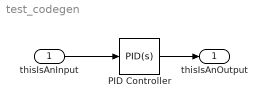
/*
 * Academic License - for use in teaching, academic research, and meeting
 * course requirements at degree granting institutions only.  Not for
 * government, commercial, or other organizational use.
 *
 * File: test_codegen.c
 *
 * Code generated for Simulink model 'test_codegen'.
 *
 * Model version                  : 1.2
 * Simulink Coder version         : 24.2 (R2024b) 21-Jun-2024
 * C/C++ source code generated on : Wed Oct 23 20:06:05 2024
 *
 * Target selection: ert.tlc
 * Embedded hardware selection: ARM Compatible->ARM Cortex-M
 * Code generation objectives:
 *    1. Execution efficiency
 *    2. RAM efficiency
 * Validation result: Not run
 */

#include "test_codegen.h"
#include "rtwtypes.h"

/* Private macros used by the generated code to access rtModel */
#ifndef rtmIsMajorTimeStep
#define rtmIsMajorTimeStep(rtm)        (((rtm)->Timing.simTimeStep) == MAJOR_TIME_STEP)
#endif

#ifndef rtmIsMinorTimeStep
#define rtmIsMinorTimeStep(rtm)        (((rtm)->Timing.simTimeStep) == MINOR_TIME_STEP)
#endif

#ifndef rtmSetTPtr
#define rtmSetTPtr(rtm, val)           ((rtm)->Timing.t = (val))
#endif

/* private model entry point functions */
extern void test_codegen_derivatives(RT_MODEL *const rtM, real_T
  rtU_thisIsAnInput);

/*
 * This function updates continuous states using the ODE3 fixed-step
 * solver algorithm
 */
static void rt_ertODEUpdateContinuousStates(RTWSolverInfo *si , RT_MODEL *const
  rtM, real_T rtU_thisIsAnInput, real_T *rtY_thisIsAnOutput)
{
  /* Solver Matrices */
  static const real_T rt_ODE3_A[3] = {
    1.0/2.0, 3.0/4.0, 1.0
  };

  static const real_T rt_ODE3_B[3][3] = {
    { 1.0/2.0, 0.0, 0.0 },

    { 0.0, 3.0/4.0, 0.0 },

    { 2.0/9.0, 1.0/3.0, 4.0/9.0 }
  };

  time_T t = rtsiGetT(si);
  time_T tnew = rtsiGetSolverStopTime(si);
  time_T h = rtsiGetStepSize(si);
  real_T *x = rtsiGetContStates(si);
  ODE3_IntgData *id = (ODE3_IntgData *)rtsiGetSolverData(si);
  real_T *y = id->y;
  real_T *f0 = id->f[0];
  real_T *f1 = id->f[1];
  real_T *f2 = id->f[2];
  real_T hB[3];
  int_T i;
  int_T nXc = 2;
  rtsiSetSimTimeStep(si,MINOR_TIME_STEP);

  /* Save the state values at time t in y, we'll use x as ynew. */
  (void) memcpy(y, x,
                (uint_T)nXc*sizeof(real_T));

  /* Assumes that rtsiSetT and ModelOutputs are up-to-date */
  /* f0 = f(t,y) */
  rtsiSetdX(si, f0);
  test_codegen_derivatives(rtM, rtU_thisIsAnInput);

  /* f(:,2) = feval(odefile, t + hA(1), y + f*hB(:,1), args(:)(*)); */
  hB[0] = h * rt_ODE3_B[0][0];
  for (i = 0; i < nXc; i++) {
    x[i] = y[i] + (f0[i]*hB[0]);
  }

  rtsiSetT(si, t + h*rt_ODE3_A[0]);
  rtsiSetdX(si, f1);
  test_codegen_step(rtM, rtU_thisIsAnInput, rtY_thisIsAnOutput);
  test_codegen_derivatives(rtM, rtU_thisIsAnInput);

  /* f(:,3) = feval(odefile, t + hA(2), y + f*hB(:,2), args(:)(*)); */
  for (i = 0; i <= 1; i++) {
    hB[i] = h * rt_ODE3_B[1][i];
  }

  for (i = 0; i < nXc; i++) {
    x[i] = y[i] + (f0[i]*hB[0] + f1[i]*hB[1]);
  }

  rtsiSetT(si, t + h*rt_ODE3_A[1]);
  rtsiSetdX(si, f2);
  test_codegen_step(rtM, rtU_thisIsAnInput, rtY_thisIsAnOutput);
  test_codegen_derivatives(rtM, rtU_thisIsAnInput);

  /* tnew = t + hA(3);
     ynew = y + f*hB(:,3); */
  for (i = 0; i <= 2; i++) {
    hB[i] = h * rt_ODE3_B[2][i];
  }

  for (i = 0; i < nXc; i++) {
    x[i] = y[i] + (f0[i]*hB[0] + f1[i]*hB[1] + f2[i]*hB[2]);
  }

  rtsiSetT(si, tnew);
  rtsiSetSimTimeStep(si,MAJOR_TIME_STEP);
}

/* Model step function */
void test_codegen_step(RT_MODEL *const rtM, real_T rtU_thisIsAnInput, real_T
  *rtY_thisIsAnOutput)
{
  DW *rtDW = rtM->dwork;
  X *rtX = rtM->contStates;
  if (rtmIsMajorTimeStep(rtM)) {
    /* set solver stop time */
    rtsiSetSolverStopTime(&rtM->solverInfo,((rtM->Timing.clockTick0+1)*
      rtM->Timing.stepSize0));
  }                                    /* end MajorTimeStep */

  /* Update absolute time of base rate at minor time step */
  if (rtmIsMinorTimeStep(rtM)) {
    rtM->Timing.t[0] = rtsiGetT(&rtM->solverInfo);
  }

  /* Gain: '<S39>/Filter Coefficient' incorporates:
   *  Gain: '<S29>/Derivative Gain'
   *  Inport: '<Root>/thisIsAnInput'
   *  Integrator: '<S31>/Filter'
   *  Sum: '<S31>/SumD'
   */
  rtDW->FilterCoefficient = (0.0 * rtU_thisIsAnInput - rtX->Filter_CSTATE) *
    100.0;

  /* Outport: '<Root>/thisIsAnOutput' incorporates:
   *  Inport: '<Root>/thisIsAnInput'
   *  Integrator: '<S36>/Integrator'
   *  Sum: '<S45>/Sum'
   */
  *rtY_thisIsAnOutput = (rtU_thisIsAnInput + rtX->Integrator_CSTATE) +
    rtDW->FilterCoefficient;
  if (rtmIsMajorTimeStep(rtM)) {
    rt_ertODEUpdateContinuousStates(&rtM->solverInfo, rtM, rtU_thisIsAnInput,
      rtY_thisIsAnOutput);

    /* Update absolute time for base rate */
    /* The "clockTick0" counts the number of times the code of this task has
     * been executed. The absolute time is the multiplication of "clockTick0"
     * and "Timing.stepSize0". Size of "clockTick0" ensures timer will not
     * overflow during the application lifespan selected.
     */
    ++rtM->Timing.clockTick0;
    rtM->Timing.t[0] = rtsiGetSolverStopTime(&rtM->solverInfo);
  }                                    /* end MajorTimeStep */
}
